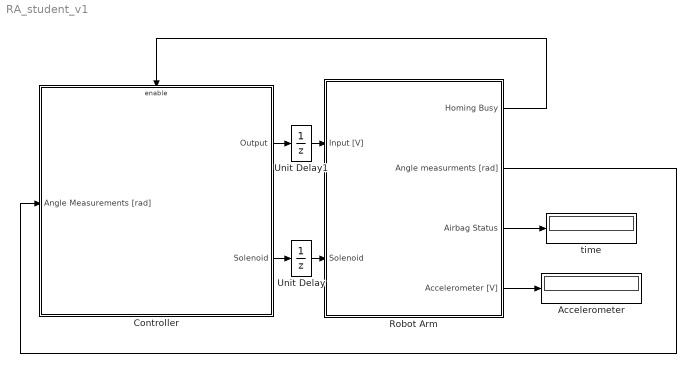
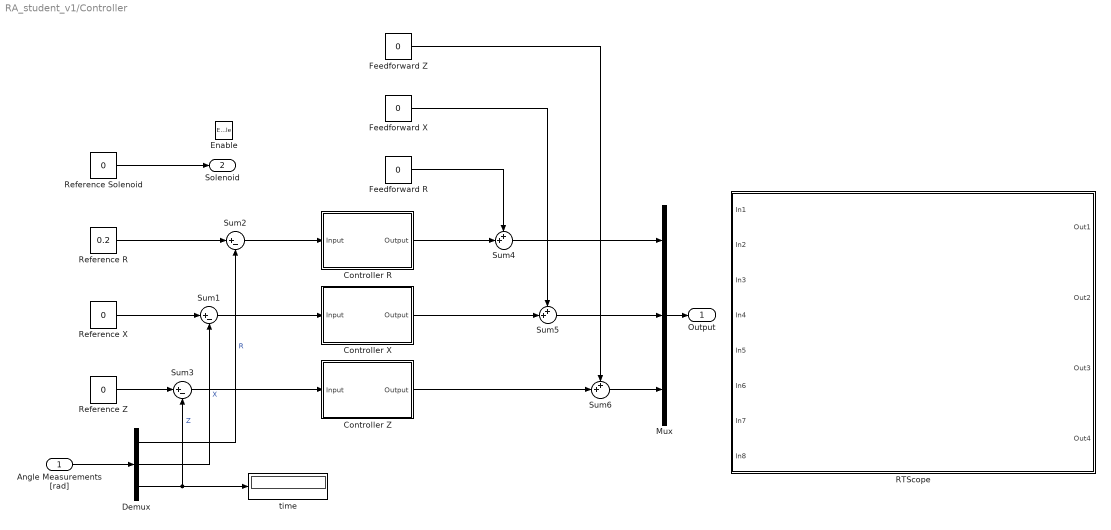
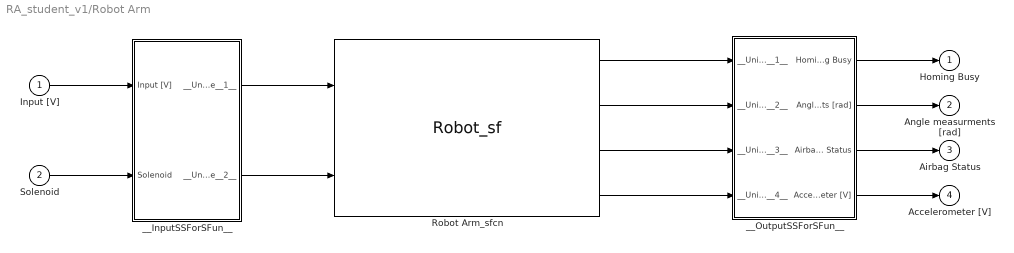
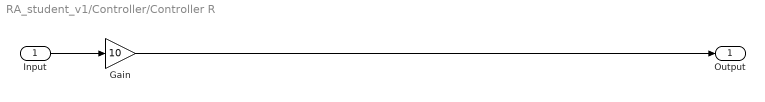
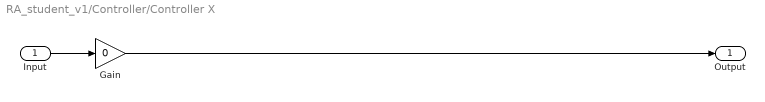
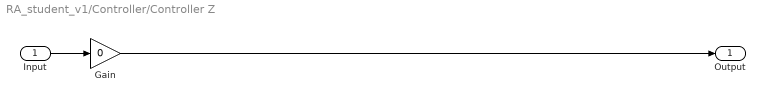
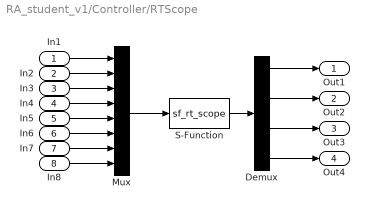
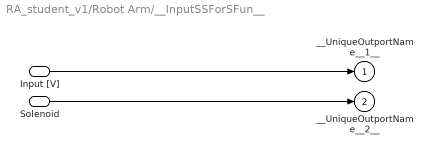
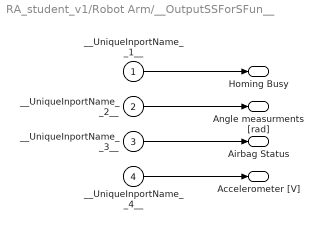
/*
 * RA_student_v1.c
 *
 * Academic License - for use in teaching, academic research, and meeting
 * course requirements at degree granting institutions only.  Not for
 * government, commercial, or other organizational use.
 *
 * Code generation for model "RA_student_v1".
 *
 * Model version              : 1.908
 * Simulink Coder version : 8.9 (R2015b) 13-Aug-2015
 * C source code generated on : Fri Apr  8 15:15:52 2016
 *
 * Target selection: ectarget.tlc
 * Note: GRT includes extra infrastructure and instrumentation for prototyping
 * Embedded hardware selection: 32-bit Generic
 * Code generation objectives: Unspecified
 * Validation result: Not run
 */

#include "RA_student_v1.h"
#include "RA_student_v1_private.h"
#include "RA_student_v1_dt.h"
#undef S_FUNCTION_NAME
#if !defined(RTW_GENERATED_SFCN_TUNABLE_PRMS_Robot_sf)
#define RTW_GENERATED_SFCN_TUNABLE_PRMS_Robot_sf
#endif

#include "Robot_sf.h"

const real_T RA_student_v1_RGND = 0.0; /* real_T ground */

/* Block signals (auto storage) */
B_RA_student_v1_T RA_student_v1_B;

/* Block states (auto storage) */
DW_RA_student_v1_T RA_student_v1_DW;

/* Real-time model */
RT_MODEL_RA_student_v1_T RA_student_v1_M_;
RT_MODEL_RA_student_v1_T *const RA_student_v1_M = &RA_student_v1_M_;

/* Model output function */
void RA_student_v1_output(void)
{
  /* Reset subsysRan breadcrumbs */
  srClearBC(RA_student_v1_DW.Controller_SubsysRanBC);

  /* UnitDelay: '<Root>/Unit Delay1' */
  RA_student_v1_B.UnitDelay1[0] = RA_student_v1_DW.UnitDelay1_DSTATE[0];
  RA_student_v1_B.UnitDelay1[1] = RA_student_v1_DW.UnitDelay1_DSTATE[1];
  RA_student_v1_B.UnitDelay1[2] = RA_student_v1_DW.UnitDelay1_DSTATE[2];

  /* UnitDelay: '<Root>/Unit Delay' */
  RA_student_v1_B.UnitDelay = RA_student_v1_DW.UnitDelay_DSTATE;

  /* RTW Generated Level2 S-Function Block: '<S2>/Robot Arm_sfcn' (Robot_sf) */
  {
    SimStruct *rts = RA_student_v1_M->childSfunctions[1];
    sfcnOutputs(rts, 0);
  }

  /* Outputs for Enabled SubSystem: '<Root>/Controller' incorporates:
   *  EnablePort: '<S1>/Enable'
   */
  if (RA_student_v1_B.RobotArm_sfcn_o1 > 0.0) {
    if (!RA_student_v1_DW.Controller_MODE) {
      RA_student_v1_DW.Controller_MODE = true;
    }
  } else {
    if (RA_student_v1_DW.Controller_MODE) {
      RA_student_v1_DW.Controller_MODE = false;
    }
  }

  if (RA_student_v1_DW.Controller_MODE) {
    /* Sum: '<S1>/Sum4' incorporates:
     *  Constant: '<S1>/Feedforward R'
     *  Constant: '<S1>/Reference R'
     *  Gain: '<S3>/Gain'
     *  Sum: '<S1>/Sum2'
     */
    RA_student_v1_B.Sum4 = (RA_student_v1_P.ReferenceR_Value -
      RA_student_v1_B.RobotArm_sfcn_o2[0]) * RA_student_v1_P.Gain_Gain +
      RA_student_v1_P.FeedforwardR_Value;

    /* Sum: '<S1>/Sum5' incorporates:
     *  Constant: '<S1>/Feedforward X'
     *  Constant: '<S1>/Reference X'
     *  Gain: '<S4>/Gain'
     *  Sum: '<S1>/Sum1'
     */
    RA_student_v1_B.Sum5 = (RA_student_v1_P.ReferenceX_Value -
      RA_student_v1_B.RobotArm_sfcn_o2[1]) * RA_student_v1_P.Gain_Gain_e +
      RA_student_v1_P.FeedforwardX_Value;

    /* Sum: '<S1>/Sum6' incorporates:
     *  Constant: '<S1>/Feedforward Z'
     *  Constant: '<S1>/Reference Z'
     *  Gain: '<S5>/Gain'
     *  Sum: '<S1>/Sum3'
     */
    RA_student_v1_B.Sum6 = (RA_student_v1_P.ReferenceZ_Value -
      RA_student_v1_B.RobotArm_sfcn_o2[2]) * RA_student_v1_P.Gain_Gain_l +
      RA_student_v1_P.FeedforwardZ_Value;

    /* Constant: '<S1>/Reference Solenoid' */
    RA_student_v1_B.ReferenceSolenoid = RA_student_v1_P.ReferenceSolenoid_Value;

    /* Level2 S-Function Block: '<S6>/S-Function' (sf_rt_scope) */
    {
      SimStruct *rts = RA_student_v1_M->childSfunctions[0];
      sfcnOutputs(rts, 0);
    }

    srUpdateBC(RA_student_v1_DW.Controller_SubsysRanBC);
  }

  /* End of Outputs for SubSystem: '<Root>/Controller' */
}

/* Model update function */
void RA_student_v1_update(void)
{
  /* Update for UnitDelay: '<Root>/Unit Delay1' */
  RA_student_v1_DW.UnitDelay1_DSTATE[0] = RA_student_v1_B.Sum4;
  RA_student_v1_DW.UnitDelay1_DSTATE[1] = RA_student_v1_B.Sum5;
  RA_student_v1_DW.UnitDelay1_DSTATE[2] = RA_student_v1_B.Sum6;

  /* Update for UnitDelay: '<Root>/Unit Delay' */
  RA_student_v1_DW.UnitDelay_DSTATE = RA_student_v1_B.ReferenceSolenoid;

  /* RTW Generated Level2 S-Function Block: '<S2>/Robot Arm_sfcn' (Robot_sf) */
  {
    SimStruct *rts = RA_student_v1_M->childSfunctions[1];
    sfcnUpdate(rts, 0);
    if (ssGetErrorStatus(rts) != (NULL))
      return;
  }

  /* Update absolute time for base rate */
  /* The "clockTick0" counts the number of times the code of this task has
   * been executed. The absolute time is the multiplication of "clockTick0"
   * and "Timing.stepSize0". Size of "clockTick0" ensures timer will not
   * overflow during the application lifespan selected.
   * Timer of this task consists of two 32 bit unsigned integers.
   * The two integers represent the low bits Timing.clockTick0 and the high bits
   * Timing.clockTickH0. When the low bit overflows to 0, the high bits increment.
   */
  if (!(++RA_student_v1_M->Timing.clockTick0)) {
    ++RA_student_v1_M->Timing.clockTickH0;
  }

  RA_student_v1_M->Timing.t[0] = RA_student_v1_M->Timing.clockTick0 *
    RA_student_v1_M->Timing.stepSize0 + RA_student_v1_M->Timing.clockTickH0 *
    RA_student_v1_M->Timing.stepSize0 * 4294967296.0;

  {
    /* Update absolute timer for sample time: [0.000244140625s, 0.0s] */
    /* The "clockTick1" counts the number of times the code of this task has
     * been executed. The absolute time is the multiplication of "clockTick1"
     * and "Timing.stepSize1". Size of "clockTick1" ensures timer will not
     * overflow during the application lifespan selected.
     * Timer of this task consists of two 32 bit unsigned integers.
     * The two integers represent the low bits Timing.clockTick1 and the high bits
     * Timing.clockTickH1. When the low bit overflows to 0, the high bits increment.
     */
    if (!(++RA_student_v1_M->Timing.clockTick1)) {
      ++RA_student_v1_M->Timing.clockTickH1;
    }

    RA_student_v1_M->Timing.t[1] = RA_student_v1_M->Timing.clockTick1 *
      RA_student_v1_M->Timing.stepSize1 + RA_student_v1_M->Timing.clockTickH1 *
      RA_student_v1_M->Timing.stepSize1 * 4294967296.0;
  }
}
